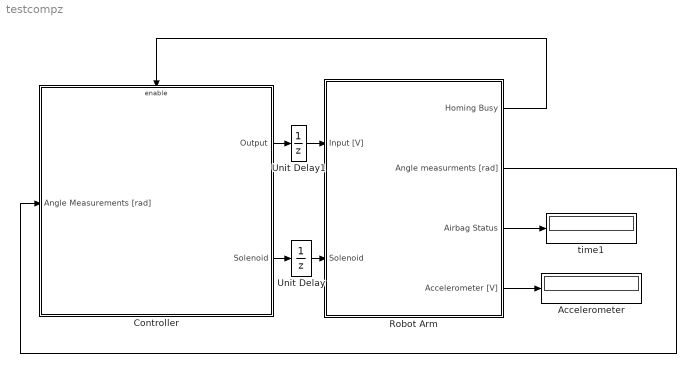
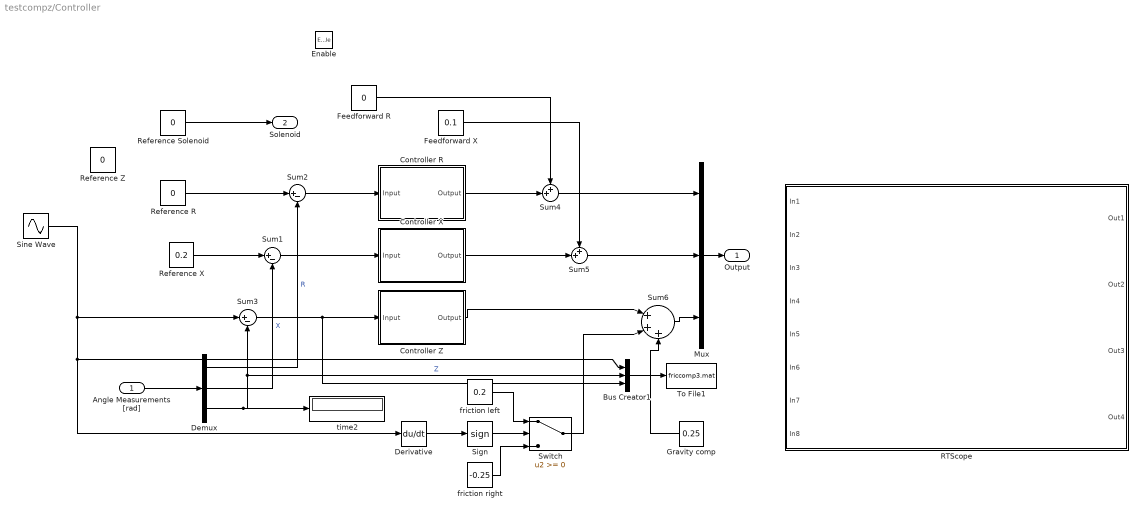
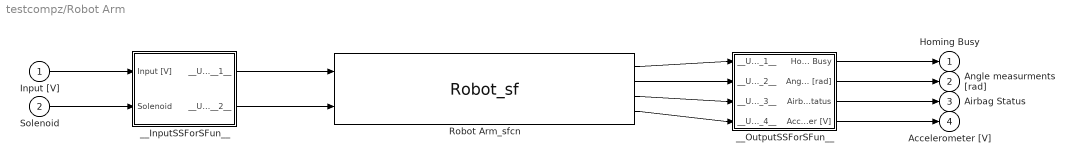
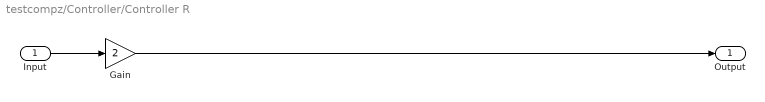
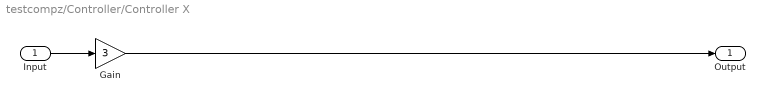
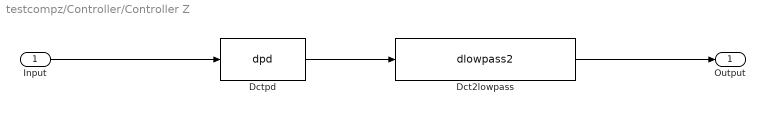
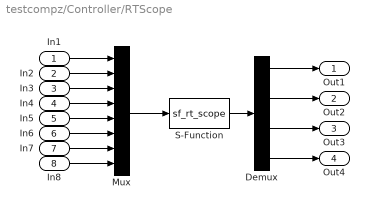
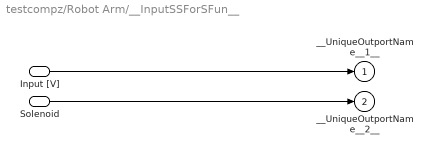
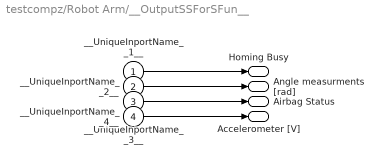
/*
 * testcompz.c
 *
 * Code generation for model "testcompz.mdl".
 *
 * Model version              : 1.916
 * Simulink Coder version : 8.1 (R2011b) 08-Jul-2011
 * C source code generated on : Sat Dec 19 13:37:57 2015
 *
 * Target selection: ectarget.tlc
 * Note: GRT includes extra infrastructure and instrumentation for prototyping
 * Embedded hardware selection: 32-bit Generic
 * Code generation objectives: Unspecified
 * Validation result: Not run
 */
#include "testcompz.h"
#include "testcompz_private.h"
#include "testcompz_dt.h"
#undef S_FUNCTION_NAME
#if !defined(RTW_GENERATED_SFCN_TUNABLE_PRMS_Robot_sf)
#define RTW_GENERATED_SFCN_TUNABLE_PRMS_Robot_sf
#endif

#include "Robot_sf.h"

const real_T testcompz_RGND = 0.0;     /* real_T ground */

/* Block signals (auto storage) */
BlockIO_testcompz testcompz_B;

/* Block states (auto storage) */
D_Work_testcompz testcompz_DWork;

/* Real-time model */
RT_MODEL_testcompz testcompz_M_;
RT_MODEL_testcompz *const testcompz_M = &testcompz_M_;

/*
 * Writes out MAT-file header.  Returns success or failure.
 * Returns:
 *      0 - success
 *      1 - failure
 */
int_T rt_WriteMat4FileHeader(FILE *fp, int32_T m, int32_T n, const char *name)
{
  typedef enum { ELITTLE_ENDIAN, EBIG_ENDIAN } ByteOrder;

  int16_T one = 1;
  ByteOrder byteOrder = (*((int8_T *)&one)==1) ? ELITTLE_ENDIAN : EBIG_ENDIAN;
  int32_T type = (byteOrder == ELITTLE_ENDIAN) ? 0: 1000;
  int32_T imagf = 0;
  int32_T name_len = strlen(name) + 1;
  if ((fwrite(&type, sizeof(int32_T), 1, fp) == 0) ||
      (fwrite(&m, sizeof(int32_T), 1, fp) == 0) ||
      (fwrite(&n, sizeof(int32_T), 1, fp) == 0) ||
      (fwrite(&imagf, sizeof(int32_T), 1, fp) == 0) ||
      (fwrite(&name_len, sizeof(int32_T), 1, fp) == 0) ||
      (fwrite(name, sizeof(char), name_len, fp) == 0)) {
    return(1);
  } else {
    return(0);
  }
}                                      /* end rt_WriteMat4FileHeader */

/* Model output function */
void testcompz_output(int_T tid)
{
  /* local block i/o variables */
  real_T rtb_TmpSignalConversionAtToFile[3];
  real_T rtb_Switch;
  real_T rtb_Gain;
  real_T rtb_Gain_d;

  /* Reset subsysRan breadcrumbs */
  srClearBC(testcompz_DWork.Controller_SubsysRanBC);

  /* UnitDelay: '<Root>/Unit Delay1' */
  /* RTWBLOCK_START_COMMENT */
  testcompz_B.UnitDelay1[0] = testcompz_DWork.UnitDelay1_DSTATE[0];
  testcompz_B.UnitDelay1[1] = testcompz_DWork.UnitDelay1_DSTATE[1];
  testcompz_B.UnitDelay1[2] = testcompz_DWork.UnitDelay1_DSTATE[2];

  /* UnitDelay: '<Root>/Unit Delay' */
  testcompz_B.UnitDelay = testcompz_DWork.UnitDelay_DSTATE;

  /* RTW Generated Level2 S-Function Block: '<S2>/Robot Arm_sfcn' (Robot_sf) */
  {
    SimStruct *rts = testcompz_M->childSfunctions[3];
    sfcnOutputs(rts, 0);
  }

  /* Outputs for Enabled SubSystem: '<Root>/Controller' incorporates:
   *  EnablePort: '<S1>/Enable'
   */
  if (testcompz_B.RobotArm_sfcn_o1 > 0.0) {
    if (!testcompz_DWork.Controller_MODE) {
      testcompz_DWork.Controller_MODE = TRUE;
    }
  } else {
    if (testcompz_DWork.Controller_MODE) {
      testcompz_DWork.Controller_MODE = FALSE;
    }
  }

  if (testcompz_DWork.Controller_MODE) {
    /* Sin: '<S1>/Sine Wave' */
    testcompz_B.SineWave = sin(testcompz_P.SineWave_Freq * testcompz_M->
      Timing.t[0] + testcompz_P.SineWave_Phase) * testcompz_P.SineWave_Amp +
      testcompz_P.SineWave_Bias;

    /* Sum: '<S1>/Sum3' */
    testcompz_B.Sum3 = testcompz_B.SineWave - testcompz_B.RobotArm_sfcn_o2[2];

    /* SignalConversion: '<S1>/TmpSignal ConversionAtTo File1Inport1' */
    rtb_TmpSignalConversionAtToFile[0] = testcompz_B.SineWave;
    rtb_TmpSignalConversionAtToFile[1] = testcompz_B.RobotArm_sfcn_o2[2];
    rtb_TmpSignalConversionAtToFile[2] = testcompz_B.Sum3;

    /* ToFile: '<S1>/To File1' */
    if (!(++testcompz_DWork.ToFile1_IWORK.Decimation % 1) &&
        (testcompz_DWork.ToFile1_IWORK.Count*4)+1 < 100000000 ) {
      FILE *fp = (FILE *) testcompz_DWork.ToFile1_PWORK.FilePtr;
      if (fp != (NULL)) {
        real_T u[4];
        testcompz_DWork.ToFile1_IWORK.Decimation = 0;
        u[0] = testcompz_M->Timing.t[1];
        u[1] = rtb_TmpSignalConversionAtToFile[0];
        u[2] = rtb_TmpSignalConversionAtToFile[1];
        u[3] = rtb_TmpSignalConversionAtToFile[2];
        if (fwrite(u, sizeof(real_T), 4, fp) != 4) {
          rtmSetErrorStatus(testcompz_M,
                            "Error writing to MAT-file friccomp3.mat");
          return;
        }

        if (((++testcompz_DWork.ToFile1_IWORK.Count)*4)+1 >= 100000000) {
          (void)fprintf(stdout,
                        "*** The ToFile block will stop logging data before\n"
                        "    the simulation has ended, because it has reached\n"
                        "    the maximum number of elements (100000000)\n"
                        "    allowed in MAT-file friccomp3.mat.\n");
        }
      }
    }

    /* Gain: '<S3>/Gain' incorporates:
     *  Constant: '<S1>/Reference R'
     *  Sum: '<S1>/Sum2'
     */
    rtb_Gain = (testcompz_P.ReferenceR_Value - testcompz_B.RobotArm_sfcn_o2[0]) *
      testcompz_P.Gain_Gain;

    /* Gain: '<S4>/Gain' incorporates:
     *  Constant: '<S1>/Reference X'
     *  Sum: '<S1>/Sum1'
     */
    rtb_Gain_d = (testcompz_P.ReferenceX_Value - testcompz_B.RobotArm_sfcn_o2[1])
      * testcompz_P.Gain_Gain_o;

    /* Level2 S-Function Block: '<S5>/Dctpd' (dpd) */
    {
      SimStruct *rts = testcompz_M->childSfunctions[0];
      sfcnOutputs(rts, 1);
    }

    /* Level2 S-Function Block: '<S5>/Dct2lowpass' (dlowpass2) */
    {
      SimStruct *rts = testcompz_M->childSfunctions[1];
      sfcnOutputs(rts, 1);
    }

    /* Derivative: '<S1>/Derivative' */
    {
      real_T t = testcompz_M->Timing.t[0];
      real_T timeStampA = testcompz_DWork.Derivative_RWORK.TimeStampA;
      real_T timeStampB = testcompz_DWork.Derivative_RWORK.TimeStampB;
      real_T *lastU = &testcompz_DWork.Derivative_RWORK.LastUAtTimeA;
      if (timeStampA >= t && timeStampB >= t) {
        rtb_Switch = 0.0;
      } else {
        real_T deltaT;
        real_T lastTime = timeStampA;
        if (timeStampA < timeStampB) {
          if (timeStampB < t) {
            lastTime = timeStampB;
            lastU = &testcompz_DWork.Derivative_RWORK.LastUAtTimeB;
          }
        } else if (timeStampA >= t) {
          lastTime = timeStampB;
          lastU = &testcompz_DWork.Derivative_RWORK.LastUAtTimeB;
        }

        deltaT = t - lastTime;
        rtb_Switch = (testcompz_B.SineWave - *lastU++) / deltaT;
      }
    }

    /* Sum: '<S1>/Sum4' incorporates:
     *  Constant: '<S1>/Feedforward R'
     */
    testcompz_B.Sum4 = testcompz_P.FeedforwardR_Value + rtb_Gain;

    /* Sum: '<S1>/Sum5' incorporates:
     *  Constant: '<S1>/Feedforward X'
     */
    testcompz_B.Sum5 = testcompz_P.FeedforwardX_Value + rtb_Gain_d;

    /* Switch: '<S1>/Switch' incorporates:
     *  Constant: '<S1>/friction left'
     *  Constant: '<S1>/friction right'
     *  Signum: '<S1>/Sign'
     */
    if ((rtb_Switch < 0.0 ? -1.0 : rtb_Switch > 0.0 ? 1.0 : rtb_Switch == 0.0 ?
         0.0 : rtb_Switch) >= testcompz_P.Switch_Threshold) {
      rtb_Switch = testcompz_P.frictionleft_Value;
    } else {
      rtb_Switch = testcompz_P.frictionright_Value;
    }

    /* End of Switch: '<S1>/Switch' */

    /* Sum: '<S1>/Sum6' incorporates:
     *  Constant: '<S1>/Gravity comp'
     */
    testcompz_B.Sum6 = (testcompz_B.Dct2lowpass + rtb_Switch) +
      testcompz_P.Gravitycomp_Value;

    /* Constant: '<S1>/Reference Solenoid' */
    testcompz_B.ReferenceSolenoid = testcompz_P.ReferenceSolenoid_Value;

    /* Level2 S-Function Block: '<S6>/S-Function' (sf_rt_scope) */
    {
      SimStruct *rts = testcompz_M->childSfunctions[2];
      sfcnOutputs(rts, 0);
    }

    srUpdateBC(testcompz_DWork.Controller_SubsysRanBC);
  }

  /* End of Outputs for SubSystem: '<Root>/Controller' */

  /* tid is required for a uniform function interface.
   * Argument tid is not used in the function. */
  UNUSED_PARAMETER(tid);
}

/* Model update function */
void testcompz_update(int_T tid)
{
  /* Update for UnitDelay: '<Root>/Unit Delay1' */
  testcompz_DWork.UnitDelay1_DSTATE[0] = testcompz_B.Sum4;
  testcompz_DWork.UnitDelay1_DSTATE[1] = testcompz_B.Sum5;
  testcompz_DWork.UnitDelay1_DSTATE[2] = testcompz_B.Sum6;

  /* Update for UnitDelay: '<Root>/Unit Delay' */
  testcompz_DWork.UnitDelay_DSTATE = testcompz_B.ReferenceSolenoid;

  /* RTW Generated Level2 S-Function Block: '<S2>/Robot Arm_sfcn' (Robot_sf) */
  {
    SimStruct *rts = testcompz_M->childSfunctions[3];
    sfcnUpdate(rts, 0);
    if (ssGetErrorStatus(rts) != (NULL))
      return;
  }

  /* Update for Enabled SubSystem: '<Root>/Controller' incorporates:
   *  Update for EnablePort: '<S1>/Enable'
   */
  if (testcompz_DWork.Controller_MODE) {
    /* Update for Derivative: '<S1>/Derivative' */
    {
      real_T timeStampA = testcompz_DWork.Derivative_RWORK.TimeStampA;
      real_T timeStampB = testcompz_DWork.Derivative_RWORK.TimeStampB;
      real_T* lastTime = &testcompz_DWork.Derivative_RWORK.TimeStampA;
      real_T* lastU = &testcompz_DWork.Derivative_RWORK.LastUAtTimeA;
      if (timeStampA != rtInf) {
        if (timeStampB == rtInf) {
          lastTime = &testcompz_DWork.Derivative_RWORK.TimeStampB;
          lastU = &testcompz_DWork.Derivative_RWORK.LastUAtTimeB;
        } else if (timeStampA >= timeStampB) {
          lastTime = &testcompz_DWork.Derivative_RWORK.TimeStampB;
          lastU = &testcompz_DWork.Derivative_RWORK.LastUAtTimeB;
        }
      }

      *lastTime = testcompz_M->Timing.t[0];
      *lastU++ = testcompz_B.SineWave;
    }
  }

  /* End of Update for SubSystem: '<Root>/Controller' */

  /* Update absolute time for base rate */
  /* The "clockTick0" counts the number of times the code of this task has
   * been executed. The absolute time is the multiplication of "clockTick0"
   * and "Timing.stepSize0". Size of "clockTick0" ensures timer will not
   * overflow during the application lifespan selected.
   * Timer of this task consists of two 32 bit unsigned integers.
   * The two integers represent the low bits Timing.clockTick0 and the high bits
   * Timing.clockTickH0. When the low bit overflows to 0, the high bits increment.
   */
  if (!(++testcompz_M->Timing.clockTick0)) {
    ++testcompz_M->Timing.clockTickH0;
  }

  testcompz_M->Timing.t[0] = testcompz_M->Timing.clockTick0 *
    testcompz_M->Timing.stepSize0 + testcompz_M->Timing.clockTickH0 *
    testcompz_M->Timing.stepSize0 * 4294967296.0;

  {
    /* Update absolute timer for sample time: [0.000244140625s, 0.0s] */
    /* The "clockTick1" counts the number of times the code of this task has
     * been executed. The absolute time is the multiplication of "clockTick1"
     * and "Timing.stepSize1". Size of "clockTick1" ensures timer will not
     * overflow during the application lifespan selected.
     * Timer of this task consists of two 32 bit unsigned integers.
     * The two integers represent the low bits Timing.clockTick1 and the high bits
     * Timing.clockTickH1. When the low bit overflows to 0, the high bits increment.
     */
    if (!(++testcompz_M->Timing.clockTick1)) {
      ++testcompz_M->Timing.clockTickH1;
    }

    testcompz_M->Timing.t[1] = testcompz_M->Timing.clockTick1 *
      testcompz_M->Timing.stepSize1 + testcompz_M->Timing.clockTickH1 *
      testcompz_M->Timing.stepSize1 * 4294967296.0;
  }

  /* tid is required for a uniform function interface.
   * Argument tid is not used in the function. */
  UNUSED_PARAMETER(tid);
}
